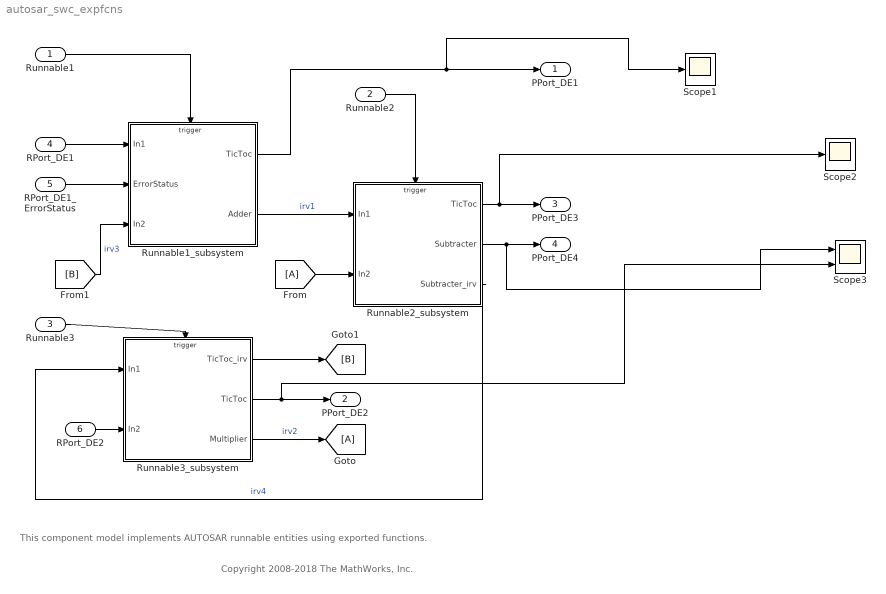
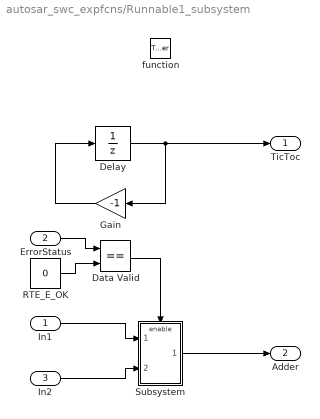
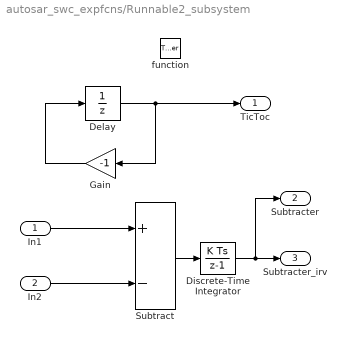
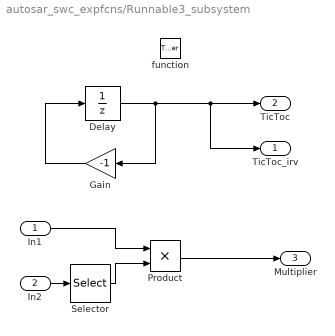
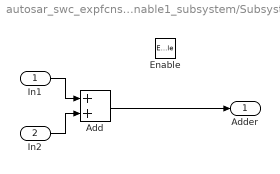
/*
 * File: autosar_swc_expfcns.c
 *
 * Code generated for Simulink model 'autosar_swc_expfcns'.
 *
 * Model version                  : 4.20
 * Simulink Coder version         : 9.5 (R2021a) 14-Nov-2020
 * C/C++ source code generated on : Mon Aug 11 11:51:31 2025
 *
 * Target selection: autosar.tlc
 * Embedded hardware selection: Intel->x86-64 (Windows64)
 * Code generation objectives: Unspecified
 * Validation result: Not run
 */

#include "autosar_swc_expfcns.h"
#ifndef PORTABLE_WORDSIZES
#ifndef UCHAR_MAX
#include <limits.h>
#endif

#if ( UCHAR_MAX != (0xFFU) ) || ( SCHAR_MAX != (0x7F) )
#error Code was generated for compiler with different sized uchar/char. \
Consider adjusting Test hardware word size settings on the \
Hardware Implementation pane to match your compiler word sizes as \
defined in limits.h of the compiler. Alternatively, you can \
select the Test hardware is the same as production hardware option and \
select the Enable portable word sizes option on the Code Generation > \
Verification pane for ERT based targets, which will disable the \
preprocessor word size checks.
#endif

#if ( USHRT_MAX != (0xFFFFU) ) || ( SHRT_MAX != (0x7FFF) )
#error Code was generated for compiler with different sized ushort/short. \
Consider adjusting Test hardware word size settings on the \
Hardware Implementation pane to match your compiler word sizes as \
defined in limits.h of the compiler. Alternatively, you can \
select the Test hardware is the same as production hardware option and \
select the Enable portable word sizes option on the Code Generation > \
Verification pane for ERT based targets, which will disable the \
preprocessor word size checks.
#endif

#if ( UINT_MAX != (0xFFFFFFFFU) ) || ( INT_MAX != (0x7FFFFFFF) )
#error Code was generated for compiler with different sized uint/int. \
Consider adjusting Test hardware word size settings on the \
Hardware Implementation pane to match your compiler word sizes as \
defined in limits.h of the compiler. Alternatively, you can \
select the Test hardware is the same as production hardware option and \
select the Enable portable word sizes option on the Code Generation > \
Verification pane for ERT based targets, which will disable the \
preprocessor word size checks.
#endif

#if ( ULONG_MAX != (0xFFFFFFFFU) ) || ( LONG_MAX != (0x7FFFFFFF) )
#error Code was generated for compiler with different sized ulong/long. \
Consider adjusting Test hardware word size settings on the \
Hardware Implementation pane to match your compiler word sizes as \
defined in limits.h of the compiler. Alternatively, you can \
select the Test hardware is the same as production hardware option and \
select the Enable portable word sizes option on the Code Generation > \
Verification pane for ERT based targets, which will disable the \
preprocessor word size checks.
#endif

/* Skipping ulong_long/long_long check: insufficient preprocessor integer range. */
#endif                                 /* PORTABLE_WORDSIZES */

/* Block signals (default storage) */
BlockIO rtB;

/* Block states (default storage) */
D_Work rtDWork;

/* Model step function for TID1 */
void Runnable1(void)                   /* Explicit Task: Runnable1 */
{
  /* RootInportFunctionCallGenerator generated from: '<Root>/Runnable1' incorporates:
   *  SubSystem: '<Root>/Runnable1_subsystem'
   */
  /* Outport: '<Root>/PPort_DE1' incorporates:
   *  UnitDelay: '<S1>/Delay'
   */
  Rte_IWrite_Runnable1_PPort_DE1(rtDWork.Delay_DSTATE_a);

  /* Gain: '<S1>/Gain' incorporates:
   *  UnitDelay: '<S1>/Delay'
   */
  rtDWork.Delay_DSTATE_a = (sint8)-rtDWork.Delay_DSTATE_a;

  /* Outputs for Enabled SubSystem: '<S1>/Subsystem' incorporates:
   *  EnablePort: '<S4>/Enable'
   */
  /* RelationalOperator: '<S1>/Data Valid' incorporates:
   *  Inport: '<Root>/RPort_DE1_ErrorStatus'
   */
  if (Rte_IStatus_Runnable1_RPort_DE1() == 0) {
    /* Sum: '<S4>/Add' incorporates:
     *  DataTransferBlock generated from: '<Root>/Runnable3_subsystem'
     *  Inport: '<Root>/RPort_DE1'
     */
    rtB.Add = Rte_IRead_Runnable1_RPort_DE1() + (float64)
      Rte_IrvIRead_Runnable1_IRV3();
  }

  /* End of RelationalOperator: '<S1>/Data Valid' */
  /* End of Outputs for SubSystem: '<S1>/Subsystem' */
  /* End of Outputs for RootInportFunctionCallGenerator generated from: '<Root>/Runnable1' */

  /* RootInportFunctionCallGenerator generated from: '<Root>/Runnable1' incorporates:
   *  SubSystem: '<Root>/Runnable1_subsystem'
   */
  /* DataTransferBlock generated from: '<Root>/Runnable1_subsystem' incorporates:
   *  SignalConversion generated from: '<S1>/Adder'
   */
  Rte_IrvIWrite_Runnable1_IRV1(rtB.Add);

  /* End of Outputs for RootInportFunctionCallGenerator generated from: '<Root>/Runnable1' */
}

/* Model step function for TID2 */
void Runnable2(void)                   /* Explicit Task: Runnable2 */
{
  /* RootInportFunctionCallGenerator generated from: '<Root>/Runnable2' incorporates:
   *  SubSystem: '<Root>/Runnable2_subsystem'
   */
  /* Outport: '<Root>/PPort_DE3' incorporates:
   *  UnitDelay: '<S2>/Delay'
   */
  Rte_IWrite_Runnable2_PPort_DE3(rtDWork.Delay_DSTATE_m);

  /* Gain: '<S2>/Gain' incorporates:
   *  UnitDelay: '<S2>/Delay'
   */
  rtDWork.Delay_DSTATE_m = (sint8)-rtDWork.Delay_DSTATE_m;

  /* Outport: '<Root>/PPort_DE4' incorporates:
   *  DiscreteIntegrator: '<S2>/Discrete-Time Integrator'
   */
  Rte_IWrite_Runnable2_PPort_DE4(rtDWork.DiscreteTimeIntegrator_DSTATE);

  /* DataTransferBlock generated from: '<Root>/Runnable2_subsystem' incorporates:
   *  DiscreteIntegrator: '<S2>/Discrete-Time Integrator'
   */
  Rte_IrvIWrite_Runnable2_IRV4(rtDWork.DiscreteTimeIntegrator_DSTATE);

  /* Update for DiscreteIntegrator: '<S2>/Discrete-Time Integrator' incorporates:
   *  DataTransferBlock generated from: '<Root>/Runnable1_subsystem'
   *  DataTransferBlock generated from: '<Root>/Runnable3_subsystem'
   *  Sum: '<S2>/Subtract'
   */
  rtDWork.DiscreteTimeIntegrator_DSTATE += Rte_IrvIRead_Runnable2_IRV1() -
    Rte_IrvIRead_Runnable2_IRV2();

  /* End of Outputs for RootInportFunctionCallGenerator generated from: '<Root>/Runnable2' */
}

/* Model step function for TID3 */
void Runnable3(void)                   /* Explicit Task: Runnable3 */
{
  const float64 *tmpIRead;
  sint8 Delay;

  /* Inport: '<Root>/RPort_DE2' */
  tmpIRead = Rte_IRead_Runnable3_RPort_DE2();

  /* RootInportFunctionCallGenerator generated from: '<Root>/Runnable3' incorporates:
   *  SubSystem: '<Root>/Runnable3_subsystem'
   */
  /* UnitDelay: '<S3>/Delay' */
  Delay = rtDWork.Delay_DSTATE;

  /* Gain: '<S3>/Gain' incorporates:
   *  UnitDelay: '<S3>/Delay'
   */
  rtDWork.Delay_DSTATE = (sint8)-rtDWork.Delay_DSTATE;

  /* End of Outputs for RootInportFunctionCallGenerator generated from: '<Root>/Runnable3' */

  /* RootInportFunctionCallGenerator generated from: '<Root>/Runnable3' incorporates:
   *  SubSystem: '<Root>/Runnable3_subsystem'
   */

  /* DataTransferBlock generated from: '<Root>/Runnable3_subsystem' incorporates:
   *  DataTransferBlock generated from: '<Root>/Runnable2_subsystem'
   *  Product: '<S3>/Product'
   */
  Rte_IrvIWrite_Runnable3_IRV2(Rte_IrvIRead_Runnable3_IRV4() * tmpIRead[0]);

  /* End of Outputs for RootInportFunctionCallGenerator generated from: '<Root>/Runnable3' */

  /* DataTransferBlock generated from: '<Root>/Runnable3_subsystem' */
  Rte_IrvIWrite_Runnable3_IRV3(Delay);

  /* RootInportFunctionCallGenerator generated from: '<Root>/Runnable3' incorporates:
   *  SubSystem: '<Root>/Runnable3_subsystem'
   */
  /* Outport: '<Root>/PPort_DE2' incorporates:
   *  SignalConversion generated from: '<S3>/TicToc'
   */
  Rte_IWrite_Runnable3_PPort_DE2(Delay);

  /* End of Outputs for RootInportFunctionCallGenerator generated from: '<Root>/Runnable3' */
}
